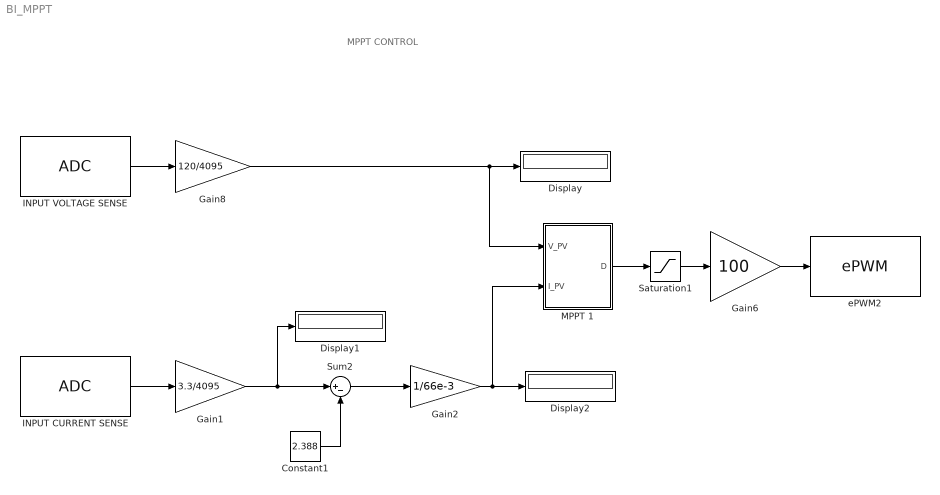
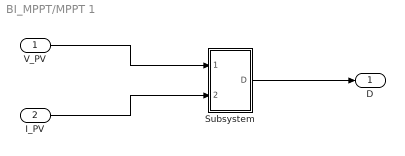
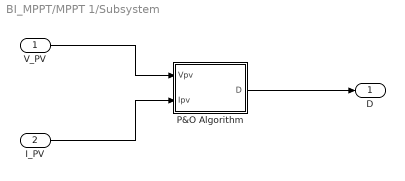
== matlab function BI_MPPT/MPPT
1/Subsystem/P&O Algorithm
 ==
function D = PandO(Vpv,Ipv)

persistent Dprev Pprev Vprev

datatype = 'double';

if isempty(Dprev)
    Dprev = 0.5;
    Vprev = 10;
    Pprev = 30;
end


deltaD =0.01;


% Calculate measured array power
Ppv = Vpv*Ipv;

% Increase or decrease duty cycle based on conditions
if (Ppv-Pprev) ~= 0
    if (Ppv-Pprev) > 0
        if (Vpv-Vprev) > 0
            D = Dprev - deltaD;
        else
            D = Dprev + deltaD;
        end
    else
        if (Vpv-Vprev) > 0
            D = Dprev + deltaD;
        else
            D = Dprev - deltaD;
        end
    end
else
    D = Dprev;
end

% Update Internal Value
Dprev = D;
Vprev = Vpv;
Pprev = Ppv;

/*
 * Academic License - for use in teaching, academic research, and meeting
 * course requirements at degree granting institutions only.  Not for
 * government, commercial, or other organizational use.
 *
 * File: BI_MPPT.c
 *
 * Code generated for Simulink model 'BI_MPPT'.
 *
 * Model version                  : 3.1
 * Simulink Coder version         : 9.9 (R2023a) 19-Nov-2022
 * C/C++ source code generated on : Wed Jan 10 14:55:15 2024
 *
 * Target selection: ert.tlc
 * Embedded hardware selection: Texas Instruments->C2000
 * Code generation objectives: Unspecified
 * Validation result: Not run
 */

#include "BI_MPPT.h"
#include "rtwtypes.h"
#include "BI_MPPT_private.h"
#include <string.h>

/* Block signals (default storage) */
B_BI_MPPT_T BI_MPPT_B;

/* Block states (default storage) */
DW_BI_MPPT_T BI_MPPT_DW;

/* Real-time model */
static RT_MODEL_BI_MPPT_T BI_MPPT_M_;
RT_MODEL_BI_MPPT_T *const BI_MPPT_M = &BI_MPPT_M_;

#ifndef __TMS320C28XX_CLA__

uint16_T MW_adcInitFlag = 0;

#endif

/* Model step function */
void BI_MPPT_step(void)
{
  real_T Ppv;
  real_T rtb_Gain8;
  real_T tmp;

  /* S-Function (c2802xadc): '<Root>/INPUT VOLTAGE SENSE' */
  {
    /*  Internal Reference Voltage : Fixed scale 0 to 3.3 V range.  */
    /*  External Reference Voltage : Allowable ranges of VREFHI(ADCINA0) = 3.3 and VREFLO(tied to ground) = 0  */
    AdcRegs.ADCSOCFRC1.bit.SOC1 = 1U;

    /* Wait for the period of Sampling window and EOC result to be latched after trigger */
#ifndef __TMS320C28XX_CLA__

    asm(" RPT #22|| NOP");

#endif

#ifdef __TMS320C28XX_CLA__

    float wait_index;
    for (wait_index= 3; wait_index > 0; wait_index--)
      __mnop();

#endif

    BI_MPPT_B.INPUTVOLTAGESENSE = (AdcResult.ADCRESULT1);
  }

  /* Gain: '<Root>/Gain8' */
  rtb_Gain8 = BI_MPPT_P.Gain8_Gain * BI_MPPT_B.INPUTVOLTAGESENSE;

  /* S-Function (c2802xadc): '<Root>/INPUT CURRENT SENSE' */
  {
    /*  Internal Reference Voltage : Fixed scale 0 to 3.3 V range.  */
    /*  External Reference Voltage : Allowable ranges of VREFHI(ADCINA0) = 3.3 and VREFLO(tied to ground) = 0  */
    AdcRegs.ADCSOCFRC1.bit.SOC2 = 1U;

    /* Wait for the period of Sampling window and EOC result to be latched after trigger */
#ifndef __TMS320C28XX_CLA__

    asm(" RPT #22|| NOP");

#endif

#ifdef __TMS320C28XX_CLA__

    float wait_index;
    for (wait_index= 3; wait_index > 0; wait_index--)
      __mnop();

#endif

    BI_MPPT_B.INPUTCURRENTSENSE = (AdcResult.ADCRESULT2);
  }

  /* MATLAB Function: '<S2>/P&O Algorithm ' incorporates:
   *  Constant: '<Root>/Constant1'
   *  Gain: '<Root>/Gain1'
   *  Gain: '<Root>/Gain2'
   *  Sum: '<Root>/Sum2'
   */
  Ppv = (BI_MPPT_P.Gain1_Gain * BI_MPPT_B.INPUTCURRENTSENSE -
         BI_MPPT_P.Constant1_Value) * BI_MPPT_P.Gain2_Gain * rtb_Gain8;
  tmp = Ppv - BI_MPPT_DW.Pprev;
  if (tmp != 0.0) {
    if (tmp > 0.0) {
      if (rtb_Gain8 - BI_MPPT_DW.Vprev > 0.0) {
        BI_MPPT_DW.Dprev -= 0.01;
      } else {
        BI_MPPT_DW.Dprev += 0.01;
      }
    } else if (rtb_Gain8 - BI_MPPT_DW.Vprev > 0.0) {
      BI_MPPT_DW.Dprev += 0.01;
    } else {
      BI_MPPT_DW.Dprev -= 0.01;
    }
  }

  BI_MPPT_DW.Vprev = rtb_Gain8;
  BI_MPPT_DW.Pprev = Ppv;

  /* End of MATLAB Function: '<S2>/P&O Algorithm ' */

  /* Saturate: '<Root>/Saturation1' */
  if (BI_MPPT_DW.Dprev > BI_MPPT_P.Saturation1_UpperSat) {
    tmp = BI_MPPT_P.Saturation1_UpperSat;
  } else if (BI_MPPT_DW.Dprev < BI_MPPT_P.Saturation1_LowerSat) {
    tmp = BI_MPPT_P.Saturation1_LowerSat;
  } else {
    tmp = BI_MPPT_DW.Dprev;
  }

  /* Gain: '<Root>/Gain6' incorporates:
   *  Saturate: '<Root>/Saturation1'
   */
  rtb_Gain8 = BI_MPPT_P.Gain6_Gain * tmp;

  /* S-Function (c2802xpwm): '<Root>/ePWM2' */

  /*-- Update CMPA value for ePWM1 --*/
  {
    EPwm1Regs.CMPA.half.CMPA = (uint16_T)((uint32_T)EPwm1Regs.TBPRD * rtb_Gain8 *
      0.01);
  }
}
